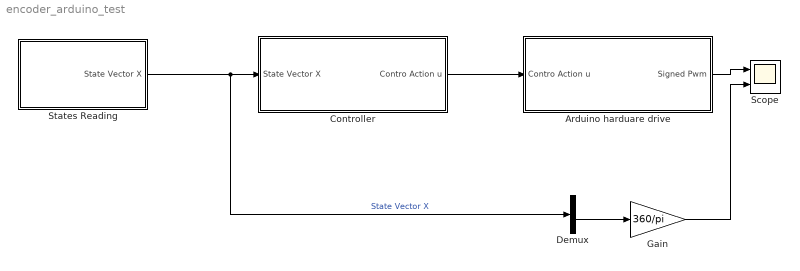
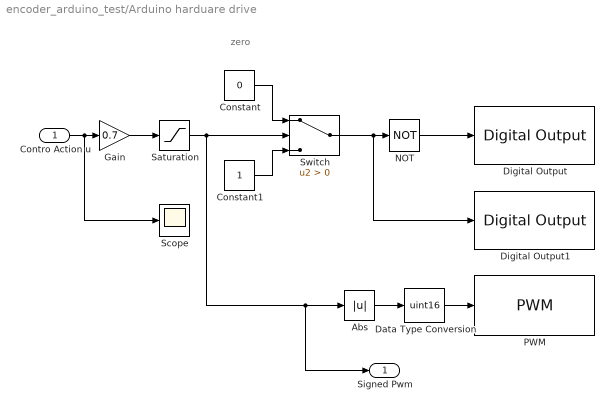
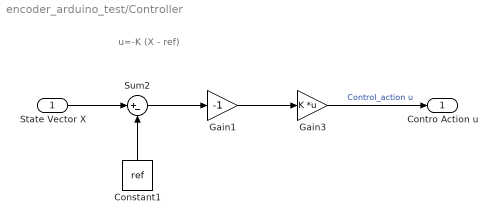
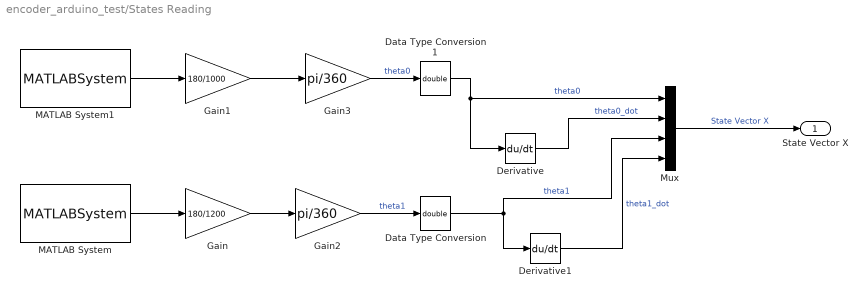
/*
 * Sponsored License - for use in support of a program or activity
 * sponsored by MathWorks.  Not for government, commercial or other
 * non-sponsored organizational use.
 *
 * File: encoder_arduino_test.c
 *
 * Code generated for Simulink model 'encoder_arduino_test'.
 *
 * Model version                  : 18.1
 * Simulink Coder version         : 23.2 (R2023b) 01-Aug-2023
 * C/C++ source code generated on : Tue Dec 19 21:49:37 2023
 *
 * Target selection: ert.tlc
 * Embedded hardware selection: Atmel->AVR
 * Code generation objectives: Unspecified
 * Validation result: Not run
 */

#include "encoder_arduino_test.h"
#include "encoder_arduino_test_private.h"
#include <math.h>
#include "rt_nonfinite.h"
#include "rtwtypes.h"
#include "multiword_types.h"

/* Block signals (default storage) */
B_encoder_arduino_test_T encoder_arduino_test_B;

/* Block states (default storage) */
DW_encoder_arduino_test_T encoder_arduino_test_DW;

/* Real-time model */
static RT_MODEL_encoder_arduino_test_T encoder_arduino_test_M_;
RT_MODEL_encoder_arduino_test_T *const encoder_arduino_test_M =
  &encoder_arduino_test_M_;
real_T sMultiWord2Double(const uint32_T u1[], int16_T n1, int16_T e1)
{
  real_T y;
  uint32_T cb;
  uint32_T u1i;
  int16_T exp_0;
  int16_T i;
  y = 0.0;
  exp_0 = e1;
  if ((u1[n1 - 1] & 2147483648UL) != 0UL) {
    cb = 1UL;
    for (i = 0; i < n1; i++) {
      u1i = ~u1[i];
      cb += u1i;
      y -= ldexp(cb, exp_0);
      cb = (uint32_T)(cb < u1i);
      exp_0 += 32;
    }
  } else {
    for (i = 0; i < n1; i++) {
      y += ldexp(u1[i], exp_0);
      exp_0 += 32;
    }
  }

  return y;
}

void sMultiWordMul(const uint32_T u1[], int16_T n1, const uint32_T u2[], int16_T
                   n2, uint32_T y[], int16_T n)
{
  uint32_T a0;
  uint32_T a1;
  uint32_T b1;
  uint32_T cb;
  uint32_T cb1;
  uint32_T cb2;
  uint32_T u1i;
  uint32_T w01;
  uint32_T w10;
  uint32_T yk;
  int16_T i;
  int16_T j;
  int16_T k;
  int16_T ni;
  boolean_T isNegative1;
  boolean_T isNegative2;
  isNegative1 = ((u1[n1 - 1] & 2147483648UL) != 0UL);
  isNegative2 = ((u2[n2 - 1] & 2147483648UL) != 0UL);
  cb1 = 1UL;

  /* Initialize output to zero */
  for (k = 0; k < n; k++) {
    y[k] = 0UL;
  }

  for (i = 0; i < n1; i++) {
    cb = 0UL;
    u1i = u1[i];
    if (isNegative1) {
      u1i = ~u1i + cb1;
      cb1 = (uint32_T)(u1i < cb1);
    }

    a1 = u1i >> 16U;
    a0 = u1i & 65535UL;
    cb2 = 1UL;
    ni = n - i;
    ni = n2 <= ni ? n2 : ni;
    k = i;
    for (j = 0; j < ni; j++) {
      u1i = u2[j];
      if (isNegative2) {
        u1i = ~u1i + cb2;
        cb2 = (uint32_T)(u1i < cb2);
      }

      b1 = u1i >> 16U;
      u1i &= 65535UL;
      w10 = a1 * u1i;
      w01 = a0 * b1;
      yk = y[k] + cb;
      cb = (uint32_T)(yk < cb);
      u1i *= a0;
      yk += u1i;
      cb += (uint32_T)(yk < u1i);
      u1i = w10 << 16U;
      yk += u1i;
      cb += (uint32_T)(yk < u1i);
      u1i = w01 << 16U;
      yk += u1i;
      cb += (uint32_T)(yk < u1i);
      y[k] = yk;
      cb += w10 >> 16U;
      cb += w01 >> 16U;
      cb += a1 * b1;
      k++;
    }

    if (k < n) {
      y[k] = cb;
    }
  }

  /* Apply sign */
  if (isNegative1 != isNegative2) {
    cb = 1UL;
    for (k = 0; k < n; k++) {
      yk = ~y[k] + cb;
      y[k] = yk;
      cb = (uint32_T)(yk < cb);
    }
  }
}

real_T rt_roundd_snf(real_T u)
{
  real_T y;
  if (fabs(u) < 4.503599627370496E+15) {
    if (u >= 0.5) {
      y = floor(u + 0.5);
    } else if (u > -0.5) {
      y = u * 0.0;
    } else {
      y = ceil(u - 0.5);
    }
  } else {
    y = u;
  }

  return y;
}

/* Model step function */
void encoder_arduino_test_step(void)
{
  {
    int64m_T tmp;
    real_T lastTime;
    real_T rtb_Abs;
    real_T rtb_theta0_dot;
    real_T *lastU;
    int32_T rtb_MATLABSystem1_0;
    uint32_T tmp_0;
    uint32_T tmp_1;
    int16_T tmp_3;
    uint16_T u0;
    uint8_T tmp_2;

    /* MATLABSystem: '<S3>/MATLAB System1' */
    if (encoder_arduino_test_DW.obj.SampleTime !=
        encoder_arduino_test_P.MATLABSystem1_SampleTime) {
      encoder_arduino_test_DW.obj.SampleTime =
        encoder_arduino_test_P.MATLABSystem1_SampleTime;
    }

    /*         %% Define output properties */
    /*  Call: int enc_output(int enc) */
    rtb_MATLABSystem1_0 = enc_output(1.0);

    /* Gain: '<S3>/Gain1' incorporates:
     *  MATLABSystem: '<S3>/MATLAB System1'
     */
    tmp_0 = (uint32_T)encoder_arduino_test_P.Gain1_Gain_j;
    tmp_1 = (uint32_T)rtb_MATLABSystem1_0;
    sMultiWordMul(&tmp_0, 1, &tmp_1, 1, &tmp.chunks[0U], 2);

    /* Gain: '<S3>/Gain3' */
    sMultiWordMul(&encoder_arduino_test_P.Gain3_Gain.chunks[0U], 2, &tmp.chunks
                  [0U], 2, &encoder_arduino_test_B.r.chunks[0U], 4);

    /* DataTypeConversion: '<S3>/Data Type Conversion1' */
    encoder_arduino_test_B.theta0 = sMultiWord2Double
      (&encoder_arduino_test_B.r.chunks[0U], 4, 0) * 1.9721522630525295E-31;

    /* Derivative: '<S3>/Derivative' incorporates:
     *  Derivative: '<S3>/Derivative1'
     */
    rtb_Abs = encoder_arduino_test_M->Timing.t[0];
    if ((encoder_arduino_test_DW.TimeStampA >= rtb_Abs) &&
        (encoder_arduino_test_DW.TimeStampB >= rtb_Abs)) {
      rtb_theta0_dot = 0.0;
    } else {
      lastTime = encoder_arduino_test_DW.TimeStampA;
      lastU = &encoder_arduino_test_DW.LastUAtTimeA;
      if (encoder_arduino_test_DW.TimeStampA <
          encoder_arduino_test_DW.TimeStampB) {
        if (encoder_arduino_test_DW.TimeStampB < rtb_Abs) {
          lastTime = encoder_arduino_test_DW.TimeStampB;
          lastU = &encoder_arduino_test_DW.LastUAtTimeB;
        }
      } else if (encoder_arduino_test_DW.TimeStampA >= rtb_Abs) {
        lastTime = encoder_arduino_test_DW.TimeStampB;
        lastU = &encoder_arduino_test_DW.LastUAtTimeB;
      }

      rtb_theta0_dot = (encoder_arduino_test_B.theta0 - *lastU) / (rtb_Abs -
        lastTime);
    }

    /* End of Derivative: '<S3>/Derivative' */

    /* MATLABSystem: '<S3>/MATLAB System' */
    if (encoder_arduino_test_DW.obj_p.SampleTime !=
        encoder_arduino_test_P.MATLABSystem_SampleTime) {
      encoder_arduino_test_DW.obj_p.SampleTime =
        encoder_arduino_test_P.MATLABSystem_SampleTime;
    }

    /*         %% Define output properties */
    /*  Call: int enc_output(int enc) */
    rtb_MATLABSystem1_0 = enc_output(0.0);

    /* Gain: '<S3>/Gain' incorporates:
     *  MATLABSystem: '<S3>/MATLAB System'
     */
    tmp_0 = (uint32_T)encoder_arduino_test_P.Gain_Gain_c;
    tmp_1 = (uint32_T)rtb_MATLABSystem1_0;
    sMultiWordMul(&tmp_0, 1, &tmp_1, 1, &tmp.chunks[0U], 2);

    /* Gain: '<S3>/Gain2' */
    sMultiWordMul(&encoder_arduino_test_P.Gain2_Gain.chunks[0U], 2, &tmp.chunks
                  [0U], 2, &encoder_arduino_test_B.r1.chunks[0U], 4);

    /* DataTypeConversion: '<S3>/Data Type Conversion' */
    encoder_arduino_test_B.theta1 = sMultiWord2Double
      (&encoder_arduino_test_B.r1.chunks[0U], 4, 0) * 1.9721522630525295E-31;

    /* Derivative: '<S3>/Derivative1' */
    if ((encoder_arduino_test_DW.TimeStampA_p >= rtb_Abs) &&
        (encoder_arduino_test_DW.TimeStampB_n >= rtb_Abs)) {
      rtb_Abs = 0.0;
    } else {
      lastTime = encoder_arduino_test_DW.TimeStampA_p;
      lastU = &encoder_arduino_test_DW.LastUAtTimeA_n;
      if (encoder_arduino_test_DW.TimeStampA_p <
          encoder_arduino_test_DW.TimeStampB_n) {
        if (encoder_arduino_test_DW.TimeStampB_n < rtb_Abs) {
          lastTime = encoder_arduino_test_DW.TimeStampB_n;
          lastU = &encoder_arduino_test_DW.LastUAtTimeB_e;
        }
      } else if (encoder_arduino_test_DW.TimeStampA_p >= rtb_Abs) {
        lastTime = encoder_arduino_test_DW.TimeStampB_n;
        lastU = &encoder_arduino_test_DW.LastUAtTimeB_e;
      }

      rtb_Abs = (encoder_arduino_test_B.theta1 - *lastU) / (rtb_Abs - lastTime);
    }

    /* Gain: '<S2>/Gain3' incorporates:
     *  Constant: '<S2>/Constant1'
     *  Gain: '<S2>/Gain1'
     *  Sum: '<S2>/Sum2'
     */
    encoder_arduino_test_B.Control_actionu = (((encoder_arduino_test_B.theta0 -
      encoder_arduino_test_P.ref[0]) * encoder_arduino_test_P.Gain1_Gain *
      encoder_arduino_test_P.K[0] + (rtb_theta0_dot -
      encoder_arduino_test_P.ref[1]) * encoder_arduino_test_P.Gain1_Gain *
      encoder_arduino_test_P.K[1]) + (encoder_arduino_test_B.theta1 -
      encoder_arduino_test_P.ref[2]) * encoder_arduino_test_P.Gain1_Gain *
      encoder_arduino_test_P.K[2]) + (rtb_Abs - encoder_arduino_test_P.ref[3]) *
      encoder_arduino_test_P.Gain1_Gain * encoder_arduino_test_P.K[3];

    /* Gain: '<S1>/Gain' */
    encoder_arduino_test_B.Saturation = encoder_arduino_test_P.Gain_Gain *
      encoder_arduino_test_B.Control_actionu;

    /* Saturate: '<S1>/Saturation' */
    if (encoder_arduino_test_B.Saturation >
        encoder_arduino_test_P.Saturation_UpperSat) {
      /* Gain: '<S1>/Gain' incorporates:
       *  Saturate: '<S1>/Saturation'
       */
      encoder_arduino_test_B.Saturation =
        encoder_arduino_test_P.Saturation_UpperSat;
    } else if (encoder_arduino_test_B.Saturation <
               encoder_arduino_test_P.Saturation_LowerSat) {
      /* Gain: '<S1>/Gain' incorporates:
       *  Saturate: '<S1>/Saturation'
       */
      encoder_arduino_test_B.Saturation =
        encoder_arduino_test_P.Saturation_LowerSat;
    }

    /* End of Saturate: '<S1>/Saturation' */

    /* Gain: '<Root>/Gain' */
    encoder_arduino_test_B.Gain = encoder_arduino_test_P.Gain_Gain_h *
      encoder_arduino_test_B.theta1;

    /* Switch: '<S1>/Switch' incorporates:
     *  Constant: '<S1>/Constant'
     *  Constant: '<S1>/Constant1'
     */
    if (encoder_arduino_test_B.Saturation >
        encoder_arduino_test_P.Switch_Threshold) {
      rtb_Abs = encoder_arduino_test_P.Constant_Value;
    } else {
      rtb_Abs = encoder_arduino_test_P.Constant1_Value;
    }

    /* End of Switch: '<S1>/Switch' */

    /* MATLABSystem: '<S1>/Digital Output' incorporates:
     *  Logic: '<S1>/NOT'
     */
    writeDigitalPin(8, (uint8_T)!(rtb_Abs != 0.0));

    /* MATLABSystem: '<S1>/Digital Output1' */
    rtb_Abs = rt_roundd_snf(rtb_Abs);
    if (rtb_Abs < 256.0) {
      if (rtb_Abs >= 0.0) {
        tmp_2 = (uint8_T)rtb_Abs;
      } else {
        tmp_2 = 0U;
      }
    } else {
      tmp_2 = MAX_uint8_T;
    }

    writeDigitalPin(7, tmp_2);

    /* End of MATLABSystem: '<S1>/Digital Output1' */

    /* MATLABSystem: '<S1>/PWM' */
    encoder_arduino_test_DW.obj_h.PWMDriverObj.MW_PWM_HANDLE = MW_PWM_GetHandle
      (6UL);

    /* DataTypeConversion: '<S1>/Data Type Conversion' incorporates:
     *  Abs: '<S1>/Abs'
     */
    rtb_Abs = floor(fabs(encoder_arduino_test_B.Saturation));
    if (rtIsNaN(rtb_Abs) || rtIsInf(rtb_Abs)) {
      /* Start for MATLABSystem: '<S1>/PWM' */
      u0 = 0U;
    } else {
      /* Start for MATLABSystem: '<S1>/PWM' */
      u0 = (uint16_T)fmod(rtb_Abs, 65536.0);
    }

    /* End of DataTypeConversion: '<S1>/Data Type Conversion' */

    /* Start for MATLABSystem: '<S1>/PWM' */
    if (u0 <= 255U) {
      tmp_3 = (int16_T)u0;
    } else {
      tmp_3 = 255;
    }

    /* MATLABSystem: '<S1>/PWM' */
    MW_PWM_SetDutyCycle(encoder_arduino_test_DW.obj_h.PWMDriverObj.MW_PWM_HANDLE,
                        (real_T)tmp_3);
  }

  {
    real_T *lastU;

    /* Update for Derivative: '<S3>/Derivative' */
    if (encoder_arduino_test_DW.TimeStampA == (rtInf)) {
      encoder_arduino_test_DW.TimeStampA = encoder_arduino_test_M->Timing.t[0];
      lastU = &encoder_arduino_test_DW.LastUAtTimeA;
    } else if (encoder_arduino_test_DW.TimeStampB == (rtInf)) {
      encoder_arduino_test_DW.TimeStampB = encoder_arduino_test_M->Timing.t[0];
      lastU = &encoder_arduino_test_DW.LastUAtTimeB;
    } else if (encoder_arduino_test_DW.TimeStampA <
               encoder_arduino_test_DW.TimeStampB) {
      encoder_arduino_test_DW.TimeStampA = encoder_arduino_test_M->Timing.t[0];
      lastU = &encoder_arduino_test_DW.LastUAtTimeA;
    } else {
      encoder_arduino_test_DW.TimeStampB = encoder_arduino_test_M->Timing.t[0];
      lastU = &encoder_arduino_test_DW.LastUAtTimeB;
    }

    *lastU = encoder_arduino_test_B.theta0;

    /* End of Update for Derivative: '<S3>/Derivative' */

    /* Update for Derivative: '<S3>/Derivative1' */
    if (encoder_arduino_test_DW.TimeStampA_p == (rtInf)) {
      encoder_arduino_test_DW.TimeStampA_p = encoder_arduino_test_M->Timing.t[0];
      lastU = &encoder_arduino_test_DW.LastUAtTimeA_n;
    } else if (encoder_arduino_test_DW.TimeStampB_n == (rtInf)) {
      encoder_arduino_test_DW.TimeStampB_n = encoder_arduino_test_M->Timing.t[0];
      lastU = &encoder_arduino_test_DW.LastUAtTimeB_e;
    } else if (encoder_arduino_test_DW.TimeStampA_p <
               encoder_arduino_test_DW.TimeStampB_n) {
      encoder_arduino_test_DW.TimeStampA_p = encoder_arduino_test_M->Timing.t[0];
      lastU = &encoder_arduino_test_DW.LastUAtTimeA_n;
    } else {
      encoder_arduino_test_DW.TimeStampB_n = encoder_arduino_test_M->Timing.t[0];
      lastU = &encoder_arduino_test_DW.LastUAtTimeB_e;
    }

    *lastU = encoder_arduino_test_B.theta1;

    /* End of Update for Derivative: '<S3>/Derivative1' */
  }

  {                                    /* Sample time: [0.0s, 0.0s] */
    extmodeErrorCode_T errorCode = EXTMODE_SUCCESS;
    extmodeSimulationTime_T currentTime = (extmodeSimulationTime_T)
      ((encoder_arduino_test_M->Timing.clockTick0 * 1) + 0)
      ;

    /* Trigger External Mode event */
    errorCode = extmodeEvent(0,currentTime);
    if (errorCode != EXTMODE_SUCCESS) {
      /* Code to handle External Mode event errors
         may be added here */
    }
  }

  {                                    /* Sample time: [0.01s, 0.0s] */
    extmodeErrorCode_T errorCode = EXTMODE_SUCCESS;
    extmodeSimulationTime_T currentTime = (extmodeSimulationTime_T)
      ((encoder_arduino_test_M->Timing.clockTick1 * 1) + 0)
      ;

    /* Trigger External Mode event */
    errorCode = extmodeEvent(1,currentTime);
    if (errorCode != EXTMODE_SUCCESS) {
      /* Code to handle External Mode event errors
         may be added here */
    }
  }

  /* Update absolute time for base rate */
  /* The "clockTick0" counts the number of times the code of this task has
   * been executed. The absolute time is the multiplication of "clockTick0"
   * and "Timing.stepSize0". Size of "clockTick0" ensures timer will not
   * overflow during the application lifespan selected.
   */
  encoder_arduino_test_M->Timing.t[0] =
    ((time_T)(++encoder_arduino_test_M->Timing.clockTick0)) *
    encoder_arduino_test_M->Timing.stepSize0;

  {
    /* Update absolute timer for sample time: [0.01s, 0.0s] */
    /* The "clockTick1" counts the number of times the code of this task has
     * been executed. The resolution of this integer timer is 0.01, which is the step size
     * of the task. Size of "clockTick1" ensures timer will not overflow during the
     * application lifespan selected.
     */
    encoder_arduino_test_M->Timing.clockTick1++;
  }
}
